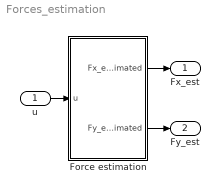
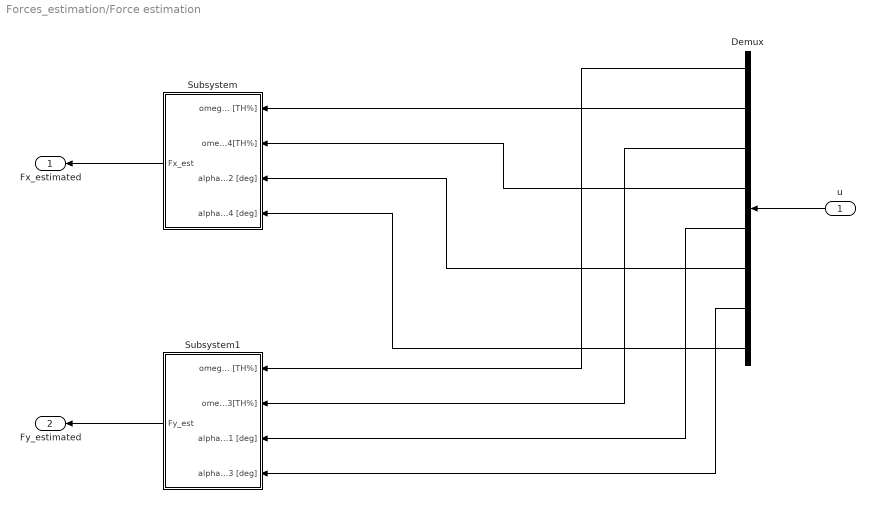
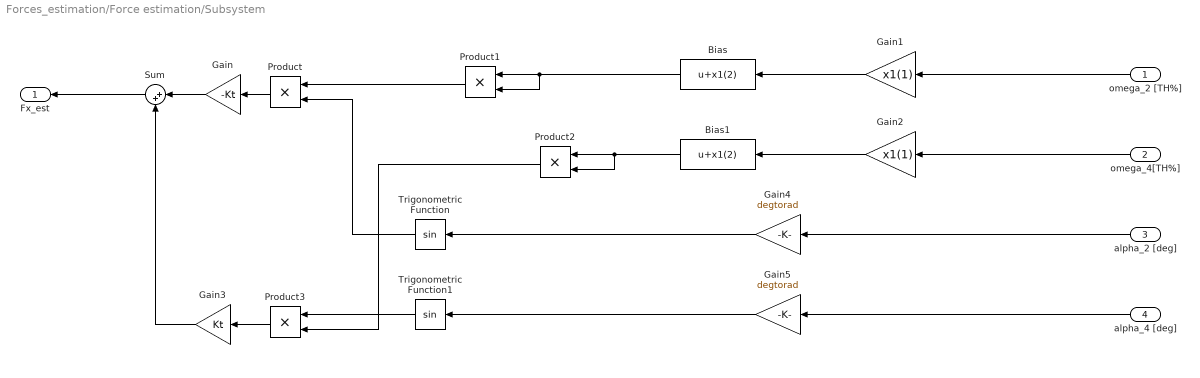
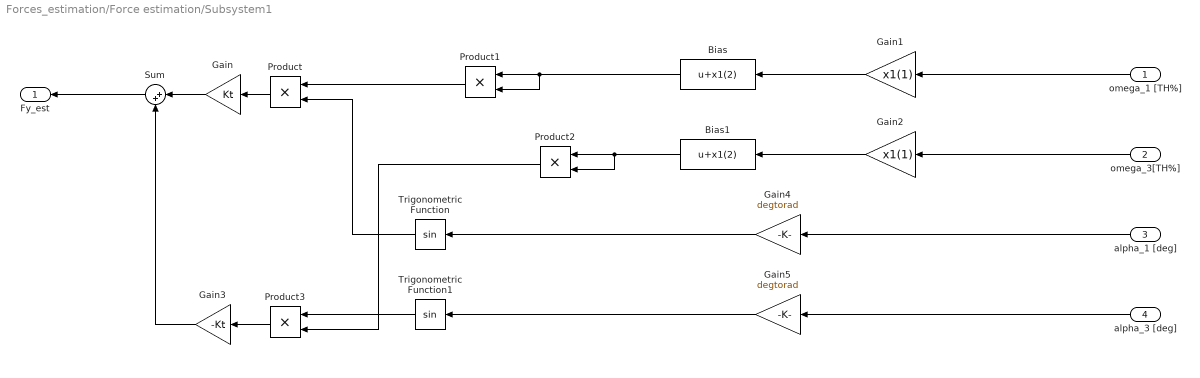
/*
 * Forces_estimation.cpp
 *
 * Code generation for model "Forces_estimation".
 *
 * Model version              : 1.20
 * Simulink Coder version : 8.8 (R2015a) 09-Feb-2015
 * C++ source code generated on : Fri Jul 15 19:26:19 2016
 *
 * Target selection: grt.tlc
 * Note: GRT includes extra infrastructure and instrumentation for prototyping
 * Embedded hardware selection: ARM Compatible->ARM Cortex
 * Code generation objective: Execution efficiency
 * Validation result: Not run
 */

#include "Forces_estimation.h"
#include "Forces_estimation_private.h"

/* Model step function */
void Forces_estimationModelClass::step()
{
  real_T rtb_Bias1;
  real_T rtb_Product1;

  /* Bias: '<S2>/Bias' incorporates:
   *  Gain: '<S2>/Gain1'
   *  Inport: '<Root>/u'
   */
  rtb_Bias1 = Forces_estimation_P.x1[0] * Forces_estimation_U.u[1] +
    Forces_estimation_P.x1[1];

  /* Product: '<S2>/Product1' */
  rtb_Product1 = rtb_Bias1 * rtb_Bias1;

  /* Bias: '<S2>/Bias1' incorporates:
   *  Gain: '<S2>/Gain2'
   *  Inport: '<Root>/u'
   */
  rtb_Bias1 = Forces_estimation_P.x1[0] * Forces_estimation_U.u[3] +
    Forces_estimation_P.x1[1];

  /* Outport: '<Root>/Fx_est' incorporates:
   *  Gain: '<S2>/Gain'
   *  Gain: '<S2>/Gain3'
   *  Gain: '<S2>/Gain4'
   *  Gain: '<S2>/Gain5'
   *  Inport: '<Root>/u'
   *  Product: '<S2>/Product'
   *  Product: '<S2>/Product2'
   *  Product: '<S2>/Product3'
   *  Sum: '<S2>/Sum'
   *  Trigonometry: '<S2>/Trigonometric Function'
   *  Trigonometry: '<S2>/Trigonometric Function1'
   */
  Forces_estimation_Y.Fx_est = sin(Forces_estimation_P.degtorad *
    Forces_estimation_U.u[5]) * rtb_Product1 * -Forces_estimation_P.Kt + sin
    (Forces_estimation_P.degtorad * Forces_estimation_U.u[7]) * (rtb_Bias1 *
    rtb_Bias1) * Forces_estimation_P.Kt;

  /* Bias: '<S3>/Bias' incorporates:
   *  Gain: '<S3>/Gain1'
   *  Inport: '<Root>/u'
   */
  rtb_Bias1 = Forces_estimation_P.x1[0] * Forces_estimation_U.u[0] +
    Forces_estimation_P.x1[1];

  /* Product: '<S3>/Product1' */
  rtb_Product1 = rtb_Bias1 * rtb_Bias1;

  /* Bias: '<S3>/Bias1' incorporates:
   *  Gain: '<S3>/Gain2'
   *  Inport: '<Root>/u'
   */
  rtb_Bias1 = Forces_estimation_P.x1[0] * Forces_estimation_U.u[2] +
    Forces_estimation_P.x1[1];

  /* Outport: '<Root>/Fy_est' incorporates:
   *  Gain: '<S3>/Gain'
   *  Gain: '<S3>/Gain3'
   *  Gain: '<S3>/Gain4'
   *  Gain: '<S3>/Gain5'
   *  Inport: '<Root>/u'
   *  Product: '<S3>/Product'
   *  Product: '<S3>/Product2'
   *  Product: '<S3>/Product3'
   *  Sum: '<S3>/Sum'
   *  Trigonometry: '<S3>/Trigonometric Function'
   *  Trigonometry: '<S3>/Trigonometric Function1'
   */
  Forces_estimation_Y.Fy_est = sin(Forces_estimation_P.degtorad *
    Forces_estimation_U.u[4]) * rtb_Product1 * Forces_estimation_P.Kt + sin
    (Forces_estimation_P.degtorad * Forces_estimation_U.u[6]) * (rtb_Bias1 *
    rtb_Bias1) * -Forces_estimation_P.Kt;
}
